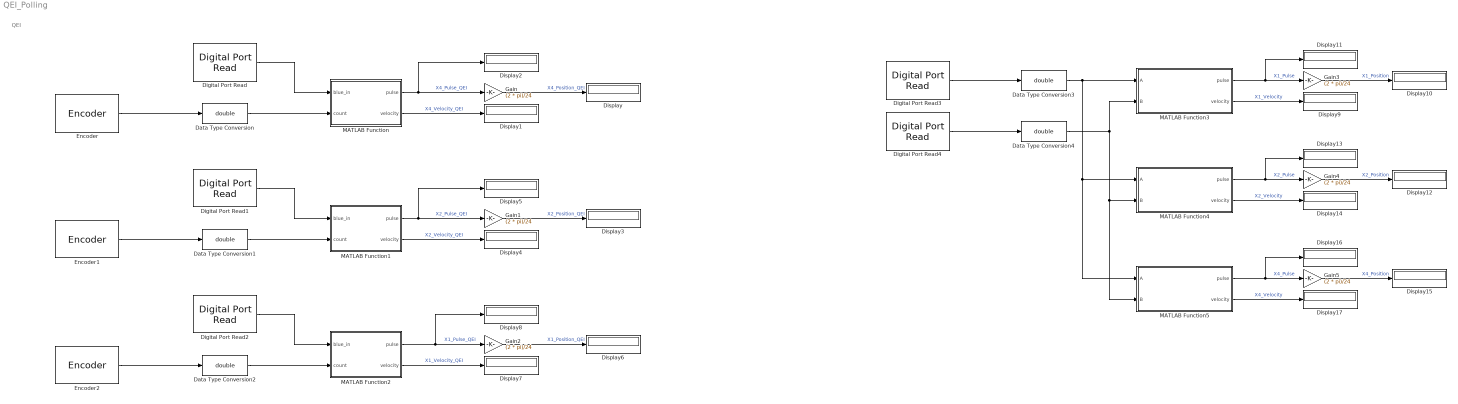
== matlab function QEI_Polling/MATLAB Function1 ==
function [pulse, velocity] = X4(blue_in, count)
    %#codegen
    
    % ประกาศตัวแปร persistent เพื่อเก็บค่าตัวนับก่อนหน้าและตำแหน่งที่คลายห่อก่อนหน้า
    persistent previousCount unwrappedPositionPrev;
    
    % กำหนดค่าเริ่มต้นให้ตัวแปร persistent เมื่อเรียกใช้งานครั้งแรก
    if isempty(previousCount)
        previousCount = count;
        unwrappedPositionPrev = 0;  % กำหนดตำแหน่งคลายห่อเริ่มต้นเป็นศูนย์
    end

    % กำหนดขอบเขตของ encoder
    encoderMax = 65520;   % ค่าสูงสุดสำหรับ encoder แบบ 16-bit (0-65535)
    threshold = encoderMax / 2;  % ค่า threshold สำหรับตรวจจับ overflow หรือ underflow

    % คำนวณค่าความแตกต่างระหว่างค่าปัจจุบันกับค่าก่อนหน้า
    diff_count = count - previousCount;

    % คำนวณความเร็วเชิงมุม (Angular Velocity)
    Ts = 0.01; % กำหนด Sampling Time (เช่น 10ms)
    PPR = 24; % จำนวนพัลส์ต่อรอบ
    velocity = ((diff_count / PPR) / Ts) * 60; % Velocity เป็น RPM

    % ตรวจจับการ overflow และ underflow
    if diff_count > threshold
        % พบการ overflow (เช่น count เปลี่ยนจาก 65535 กลับไปที่ 0)
        pulse = unwrappedPositionPrev + (diff_count - encoderMax);
    elseif diff_count < -threshold
        % พบการ underflow (เช่น count เปลี่ยนจาก 0 เป็น 65535)
        pulse = unwrappedPositionPrev + (diff_count + encoderMax);
    else
        % กรณีปกติที่ไม่มี overflow/underflow
        pulse = unwrappedPositionPrev + diff_count;
    end

    if blue_in == 1
        pulse = 0;
        velocity = 0;
    end
    % อัปเดตตัวแปร persistent เพื่อใช้ในรอบถัดไป
    previousCount = count;
    unwrappedPositionPrev = pulse; 
end

== matlab function QEI_Polling/MATLAB Function ==
function [pulse, velocity] = X4(blue_in, count)
    %#codegen
    
    % ประกาศตัวแปร persistent เพื่อเก็บค่าตัวนับก่อนหน้าและตำแหน่งที่คลายห่อก่อนหน้า
    persistent previousCount unwrappedPositionPrev;
    
    % กำหนดค่าเริ่มต้นให้ตัวแปร persistent เมื่อเรียกใช้งานครั้งแรก
    if isempty(previousCount)
        previousCount = count;
        unwrappedPositionPrev = 0;  % กำหนดตำแหน่งคลายห่อเริ่มต้นเป็นศูนย์
    end

    % กำหนดขอบเขตของ encoder
    encoderMax = 65520;   % ค่าสูงสุดสำหรับ encoder แบบ 16-bit (0-65535)
    threshold = encoderMax / 2;  % ค่า threshold สำหรับตรวจจับ overflow หรือ underflow

    % คำนวณค่าความแตกต่างระหว่างค่าปัจจุบันกับค่าก่อนหน้า
    diff_count = count - previousCount;

    % คำนวณความเร็วเชิงมุม (Angular Velocity)
    Ts = 0.01; % กำหนด Sampling Time (เช่น 10ms)
    PPR = 24; % จำนวนพัลส์ต่อรอบ
    velocity = ((diff_count / PPR) / Ts) * 60; % Velocity เป็น RPM

    % ตรวจจับการ overflow และ underflow
    if diff_count > threshold
        % พบการ overflow (เช่น count เปลี่ยนจาก 65535 กลับไปที่ 0)
        pulse = unwrappedPositionPrev + (diff_count - encoderMax);
    elseif diff_count < -threshold
        % พบการ underflow (เช่น count เปลี่ยนจาก 0 เป็น 65535)
        pulse = unwrappedPositionPrev + (diff_count + encoderMax);
    else
        % กรณีปกติที่ไม่มี overflow/underflow
        pulse = unwrappedPositionPrev + diff_count;
    end

    if blue_in == 1
        pulse = 0;
        velocity = 0;
    end
    % อัปเดตตัวแปร persistent เพื่อใช้ในรอบถัดไป
    previousCount = count;
    unwrappedPositionPrev = pulse; 
end

== matlab function QEI_Polling/MATLAB Function2 ==
function [pulse, velocity] = X1(blue_in, count)
    %#codegen
    
    % ประกาศตัวแปร persistent เพื่อเก็บค่าตัวนับก่อนหน้าและตำแหน่งที่คลายห่อก่อนหน้า
    persistent previousCount unwrappedPositionPrev;
    
    % กำหนดค่าเริ่มต้นให้ตัวแปร persistent เมื่อเรียกใช้งานครั้งแรก
    if isempty(previousCount)
        previousCount = count;
        unwrappedPositionPrev = 0;  % กำหนดตำแหน่งคลายห่อเริ่มต้นเป็นศูนย์
    end

    % กำหนดขอบเขตของ encoder
    encoderMax = 65520;   % ค่าสูงสุดสำหรับ encoder แบบ 16-bit (0-65535)
    threshold = encoderMax / 2;  % ค่า threshold สำหรับตรวจจับ overflow หรือ underflow

    % คำนวณค่าความแตกต่างระหว่างค่าปัจจุบันกับค่าก่อนหน้า
    diff_count = count - previousCount;

    % คำนวณความเร็วเชิงมุม (Angular Velocity)
    Ts = 0.01; % กำหนด Sampling Time (เช่น 10ms)
    PPR = 24; % จำนวนพัลส์ต่อรอบ
    velocity = ((diff_count / PPR) / Ts) * 60; % Velocity เป็น RPM

    % ตรวจจับการ overflow และ underflow
    if diff_count > threshold
        % พบการ overflow (เช่น count เปลี่ยนจาก 65535 กลับไปที่ 0)
        pulse = unwrappedPositionPrev + (diff_count - encoderMax);
    elseif diff_count < -threshold
        % พบการ underflow (เช่น count เปลี่ยนจาก 0 เป็น 65535)
        pulse = unwrappedPositionPrev + (diff_count + encoderMax);
    else
        % กรณีปกติที่ไม่มี overflow/underflow
        pulse = unwrappedPositionPrev + diff_count;
    end

    if blue_in == 1
        pulse = 0;
        velocity = 0;
    end
    % อัปเดตตัวแปร persistent เพื่อใช้ในรอบถัดไป
    previousCount = count;
    unwrappedPositionPrev = pulse; 
end

== matlab function QEI_Polling/MATLAB Function3 ==
function [pulse, velocity] = EncoderX1(A, B)
   
    persistent lastA count lastCount;
    if isempty(lastA) || isempty(count) || isempty(lastCount)
        lastA = 0;
        count = 0;
        lastCount = 0;
    end
    
    currentA = A;  
    currentB = B;  
    
    if lastA ~= currentA
        if currentB == 1 && currentA == 1
            count = count - 1; 
        elseif currentB == 0 && currentA == 1
            count = count + 1;  
        end
    end
    
    velocity = ((count - lastCount) / 0.001) * 60;
    
    lastA = currentA;
    lastCount = count;
    
    pulse = count;
end

== matlab function QEI_Polling/MATLAB Function4 ==
function [pulse, velocity] = EncoderX2(A, B)
   
    persistent lastA count lastCount;
    if isempty(lastA) || isempty(count) || isempty(lastCount)
        lastA = 0;
        count = 0;
        lastCount = 0;
    end
    
    currentA = A;  
    currentB = B;  
    
    if lastA ~= currentA
        if currentB == 1 && currentA == 1 && lastA == 0
            count = count - 1;  % Forward count
        elseif currentB == 0 && currentA == 1 && lastA == 0
            count = count + 1;  % Backward count
        elseif currentB == 1 && currentA == 0 && lastA == 1
            count = count + 1;
        elseif currentB == 0 && currentA == 0 && lastA == 1
            count = count - 1;
        end
    end
    
    velocity = ((count - lastCount) / 0.001) * 60;
    
    lastA = currentA;
    lastCount = count;
    
    pulse = count;
end

== matlab function QEI_Polling/MATLAB Function5 ==
function [pulse, velocity] = EncoderX4(A, B)

    persistent lastA lastB count lastCount;

    if isempty(lastA) || isempty(lastB) || isempty(count) || isempty(lastCount)
        lastA = 0;
        lastB = 0;
        count = 0;
        lastCount = 0;
    end
    
    
    if lastA == 0 && A == 1
        if B  == 0
            count = count + 1;
        else
            count = count - 1;
        end
    elseif lastA == 1 && A == 0
        if B == 0
            count = count - 1;
        else
            count = count + 1;
        end
    elseif lastB == 0 && B == 1
        if A == 0
            count = count + 1;
        else
            count = count - 1;
        end
    elseif lastB == 1 && B == 0
        if A == 0
            count = count - 1;
        else
            count = count + 1;
        end
    end
        
    
    velocity = ((count - lastCount) / 0.001) * 60;
    
    lastA = A;
    lastB = B;
    lastCount = count;
    
    pulse = count;
end

/*
 * Academic License - for use in teaching, academic research, and meeting
 * course requirements at degree granting institutions only.  Not for
 * government, commercial, or other organizational use.
 *
 * File: QEI_Polling.c
 *
 * Code generated for Simulink model 'QEI_Polling'.
 *
 * Model version                  : 1.2
 * Simulink Coder version         : 24.2 (R2024b) 21-Jun-2024
 * C/C++ source code generated on : Fri Nov  1 00:02:00 2024
 *
 * Target selection: ert.tlc
 * Embedded hardware selection: ARM Compatible->ARM Cortex-M
 * Code generation objectives: Unspecified
 * Validation result: Not run
 */

#include "QEI_Polling.h"
#include "rtwtypes.h"
#include "QEI_Polling_types.h"
#include "QEI_Polling_private.h"
#include "stm_timer_ll.h"

/* Named constants for MATLAB Function: '<Root>/MATLAB Function' */
#define QEI_Polling_CALL_EVENT         (-1)

/* Block signals (default storage) */
B_QEI_Polling_T QEI_Polling_B;

/* Block states (default storage) */
DW_QEI_Polling_T QEI_Polling_DW;

/* Real-time model */
static RT_MODEL_QEI_Polling_T QEI_Polling_M_;
RT_MODEL_QEI_Polling_T *const QEI_Polling_M = &QEI_Polling_M_;

/* Forward declaration for local functions */
static void QEI_Polling_SystemCore_setup(stm32cube_blocks_EncoderBlock_T *obj);
static void QEI_Polling_SystemCore_setup_k(stm32cube_blocks_EncoderBlock_T *obj);
static void QEI_Polling_SystemCore_setup_k0(stm32cube_blocks_EncoderBlock_T *obj);

/* System initialize for atomic system: */
void QEI_Pollin_DigitalPortRead_Init(DW_DigitalPortRead_QEI_Pollin_T *localDW)
{
  /* Start for MATLABSystem: '<S14>/Digital Port Read' */
  localDW->objisempty = true;
  localDW->obj.isInitialized = 1;
}

/* Output and update for atomic system: */
void QEI_Polling_DigitalPortRead(B_DigitalPortRead_QEI_Polling_T *localB)
{
  uint32_T pinReadLoc;

  /* MATLABSystem: '<S14>/Digital Port Read' */
  pinReadLoc = LL_GPIO_ReadInputPort(GPIOC);

  /* MATLABSystem: '<S14>/Digital Port Read' */
  localB->DigitalPortRead = ((pinReadLoc & 8192U) != 0U);
}

/*
 * System initialize for atomic system:
 *    '<Root>/MATLAB Function'
 *    '<Root>/MATLAB Function1'
 *    '<Root>/MATLAB Function2'
 */
void QEI_Polling_MATLABFunction_Init(DW_MATLABFunction_QEI_Polling_T *localDW)
{
  localDW->sfEvent = QEI_Polling_CALL_EVENT;
}

/*
 * Output and update for atomic system:
 *    '<Root>/MATLAB Function'
 *    '<Root>/MATLAB Function1'
 *    '<Root>/MATLAB Function2'
 */
void QEI_Polling_MATLABFunction(boolean_T rtu_blue_in, real_T rtu_count, real_T *
  rty_pulse, real_T *rty_velocity, DW_MATLABFunction_QEI_Polling_T *localDW)
{
  real_T diff_count;
  localDW->sfEvent = QEI_Polling_CALL_EVENT;
  if (!localDW->lastCount_not_empty) {
    localDW->lastCount = rtu_count;
    localDW->lastCount_not_empty = true;
    localDW->unwrappedPositionPrev_not_empty = true;
  }

  diff_count = rtu_count - localDW->lastCount;
  *rty_velocity = diff_count / 24.0 / 0.1 * 60.0;
  if (diff_count > 32760.0) {
    localDW->unwrappedPositionPrev += diff_count - 65520.0;
  } else if (diff_count < -32760.0) {
    localDW->unwrappedPositionPrev += diff_count + 65520.0;
  } else {
    localDW->unwrappedPositionPrev += diff_count;
  }

  if (rtu_blue_in) {
    localDW->unwrappedPositionPrev = 0.0;
    *rty_velocity = 0.0;
  }

  localDW->lastCount = rtu_count;
  *rty_pulse = localDW->unwrappedPositionPrev;
}

static void QEI_Polling_SystemCore_setup(stm32cube_blocks_EncoderBlock_T *obj)
{
  uint8_T ChannelInfo;
  TIM_Type_T b;
  boolean_T isSlaveModeTriggerEnabled;

  /* Start for MATLABSystem: '<Root>/Encoder' */
  obj->isInitialized = 1;
  b.PeripheralPtr = TIM3;
  b.isCenterAlignedMode = false;

  /* Start for MATLABSystem: '<Root>/Encoder' */
  b.repetitionCounter = 0U;
  obj->TimerHandle = Timer_Handle_Init(&b);
  enableTimerInterrupts(obj->TimerHandle, 0);
  ChannelInfo = ENABLE_CH;

  /* Start for MATLABSystem: '<Root>/Encoder' */
  enableTimerChannel1(obj->TimerHandle, ChannelInfo);
  enableTimerChannel2(obj->TimerHandle, ChannelInfo);
  isSlaveModeTriggerEnabled = isSlaveTriggerModeEnabled(obj->TimerHandle);
  if (!isSlaveModeTriggerEnabled) {
    /* Start for MATLABSystem: '<Root>/Encoder' */
    enableCounter(obj->TimerHandle, false);
  }

  obj->isSetupComplete = true;
}

static void QEI_Polling_SystemCore_setup_k(stm32cube_blocks_EncoderBlock_T *obj)
{
  uint8_T ChannelInfo;
  TIM_Type_T b;
  boolean_T isSlaveModeTriggerEnabled;

  /* Start for MATLABSystem: '<Root>/Encoder1' */
  obj->isInitialized = 1;
  b.PeripheralPtr = TIM4;
  b.isCenterAlignedMode = false;

  /* Start for MATLABSystem: '<Root>/Encoder1' */
  b.repetitionCounter = 0U;
  obj->TimerHandle = Timer_Handle_Init(&b);
  enableTimerInterrupts(obj->TimerHandle, 0);
  ChannelInfo = ENABLE_CH;

  /* Start for MATLABSystem: '<Root>/Encoder1' */
  enableTimerChannel1(obj->TimerHandle, ChannelInfo);
  enableTimerChannel2(obj->TimerHandle, ChannelInfo);
  isSlaveModeTriggerEnabled = isSlaveTriggerModeEnabled(obj->TimerHandle);
  if (!isSlaveModeTriggerEnabled) {
    /* Start for MATLABSystem: '<Root>/Encoder1' */
    enableCounter(obj->TimerHandle, false);
  }

  obj->isSetupComplete = true;
}

static void QEI_Polling_SystemCore_setup_k0(stm32cube_blocks_EncoderBlock_T *obj)
{
  uint8_T ChannelInfo;
  TIM_Type_T b;
  boolean_T isSlaveModeTriggerEnabled;

  /* Start for MATLABSystem: '<Root>/Encoder2' */
  obj->isInitialized = 1;
  b.PeripheralPtr = TIM8;
  b.isCenterAlignedMode = false;

  /* Start for MATLABSystem: '<Root>/Encoder2' */
  b.repetitionCounter = 0U;
  obj->TimerHandle = Timer_Handle_Init(&b);
  enableTimerInterrupts(obj->TimerHandle, 0);
  ChannelInfo = ENABLE_CH;

  /* Start for MATLABSystem: '<Root>/Encoder2' */
  enableTimerChannel1(obj->TimerHandle, ChannelInfo);
  enableTimerChannel2(obj->TimerHandle, ChannelInfo);
  isSlaveModeTriggerEnabled = isSlaveTriggerModeEnabled(obj->TimerHandle);
  if (!isSlaveModeTriggerEnabled) {
    /* Start for MATLABSystem: '<Root>/Encoder2' */
    enableCounter(obj->TimerHandle, false);
  }

  obj->isSetupComplete = true;
}

/* Model step function */
void QEI_Polling_step(void)
{
  real_T B;
  real_T currentA;
  uint32_T timerCounts;
  QEI_Polling_DigitalPortRead(&QEI_Polling_B.DigitalPortRead);

  /* MATLABSystem: '<Root>/Encoder' */
  timerCounts = getTimerCounterValueForG4(QEI_Polling_DW.obj_m.TimerHandle,
    false, NULL);

  /* MATLAB Function: '<Root>/MATLAB Function' incorporates:
   *  DataTypeConversion: '<Root>/Data Type Conversion'
   *  MATLABSystem: '<Root>/Encoder'
   */
  QEI_Polling_MATLABFunction(QEI_Polling_B.DigitalPortRead.DigitalPortRead,
    (real_T)timerCounts, &QEI_Polling_B.pulse_h, &QEI_Polling_B.velocity_k,
    &QEI_Polling_DW.sf_MATLABFunction);

  /* Gain: '<Root>/Gain' */
  QEI_Polling_B.X4_Position_QEI = 0.26179938779914941 * QEI_Polling_B.pulse_h;
  QEI_Polling_DigitalPortRead(&QEI_Polling_B.DigitalPortRead_e);

  /* MATLABSystem: '<Root>/Encoder1' */
  timerCounts = getTimerCounterValueForG4(QEI_Polling_DW.obj_c.TimerHandle,
    false, NULL);

  /* MATLAB Function: '<Root>/MATLAB Function1' incorporates:
   *  DataTypeConversion: '<Root>/Data Type Conversion1'
   *  MATLABSystem: '<Root>/Encoder1'
   */
  QEI_Polling_MATLABFunction(QEI_Polling_B.DigitalPortRead_e.DigitalPortRead,
    (real_T)timerCounts, &QEI_Polling_B.pulse_g, &QEI_Polling_B.velocity_n2,
    &QEI_Polling_DW.sf_MATLABFunction1);

  /* Gain: '<Root>/Gain1' */
  QEI_Polling_B.X2_Position_QEI = 0.26179938779914941 * QEI_Polling_B.pulse_g;
  QEI_Polling_DigitalPortRead(&QEI_Polling_B.DigitalPortRead_m);

  /* MATLABSystem: '<Root>/Encoder2' */
  timerCounts = getTimerCounterValueForG4(QEI_Polling_DW.obj.TimerHandle, false,
    NULL);

  /* MATLAB Function: '<Root>/MATLAB Function2' incorporates:
   *  DataTypeConversion: '<Root>/Data Type Conversion2'
   *  MATLABSystem: '<Root>/Encoder2'
   */
  QEI_Polling_MATLABFunction(QEI_Polling_B.DigitalPortRead_m.DigitalPortRead,
    (real_T)timerCounts, &QEI_Polling_B.pulse_i, &QEI_Polling_B.velocity_b,
    &QEI_Polling_DW.sf_MATLABFunction2);

  /* Gain: '<Root>/Gain2' */
  QEI_Polling_B.X1_Position_QEI = 0.26179938779914941 * QEI_Polling_B.pulse_i;
  QEI_Polling_DigitalPortRead(&QEI_Polling_B.DigitalPortRead_ev);

  /* MATLABSystem: '<S20>/Digital Port Read' */
  timerCounts = LL_GPIO_ReadInputPort(GPIOB);

  /* DataTypeConversion: '<Root>/Data Type Conversion3' incorporates:
   *  MATLABSystem: '<S20>/Digital Port Read'
   * */
  QEI_Polling_B.DataTypeConversion3 = ((timerCounts & 32U) != 0U);

  /* MATLABSystem: '<S22>/Digital Port Read' */
  timerCounts = LL_GPIO_ReadInputPort(GPIOB);

  /* DataTypeConversion: '<Root>/Data Type Conversion4' incorporates:
   *  MATLABSystem: '<S22>/Digital Port Read'
   * */
  QEI_Polling_B.DataTypeConversion4 = ((timerCounts & 16U) != 0U);

  /* MATLAB Function: '<Root>/MATLAB Function3' */
  if ((!QEI_Polling_DW.lastA_not_empty_a) || (!QEI_Polling_DW.count_not_empty_m)
      || (!QEI_Polling_DW.lastCount_not_empty_g)) {
    QEI_Polling_DW.lastA_j = 0.0;
    QEI_Polling_DW.lastA_not_empty_a = true;
    QEI_Polling_DW.count_h = 0.0;
    QEI_Polling_DW.count_not_empty_m = true;
    QEI_Polling_DW.lastCount_h = 0.0;
    QEI_Polling_DW.lastCount_not_empty_g = true;
  }

  currentA = QEI_Polling_B.DataTypeConversion3;
  if (QEI_Polling_DW.lastA_j != QEI_Polling_B.DataTypeConversion3) {
    if ((QEI_Polling_B.DataTypeConversion4 == 1.0) &&
        (QEI_Polling_B.DataTypeConversion3 == 1.0)) {
      QEI_Polling_DW.count_h--;
    } else if ((QEI_Polling_B.DataTypeConversion4 == 0.0) &&
               (QEI_Polling_B.DataTypeConversion3 == 1.0)) {
      QEI_Polling_DW.count_h++;
    }
  }

  QEI_Polling_B.velocity_f = (QEI_Polling_DW.count_h -
    QEI_Polling_DW.lastCount_h) / 0.01 * 60.0;
  if (QEI_Polling_B.DigitalPortRead_ev.DigitalPortRead) {
    QEI_Polling_DW.count_h = 0.0;
    QEI_Polling_B.velocity_f = 0.0;
    currentA = 0.0;
  }

  QEI_Polling_DW.lastA_j = currentA;
  QEI_Polling_DW.lastCount_h = QEI_Polling_DW.count_h;
  QEI_Polling_B.pulse_b = QEI_Polling_DW.count_h;

  /* End of MATLAB Function: '<Root>/MATLAB Function3' */
  /* Gain: '<Root>/Gain3' */
  QEI_Polling_B.X1_Position = 0.26179938779914941 * QEI_Polling_B.pulse_b;

  /* MATLAB Function: '<Root>/MATLAB Function4' */
  if ((!QEI_Polling_DW.lastA_not_empty_c) || (!QEI_Polling_DW.count_not_empty_i)
      || (!QEI_Polling_DW.lastCount_not_empty_m)) {
    QEI_Polling_DW.lastA_b = 0.0;
    QEI_Polling_DW.lastA_not_empty_c = true;
    QEI_Polling_DW.count_d = 0.0;
    QEI_Polling_DW.count_not_empty_i = true;
    QEI_Polling_DW.lastCount_j = 0.0;
    QEI_Polling_DW.lastCount_not_empty_m = true;
  }

  currentA = QEI_Polling_B.DataTypeConversion3;
  if (QEI_Polling_DW.lastA_b != QEI_Polling_B.DataTypeConversion3) {
    if ((QEI_Polling_B.DataTypeConversion4 == 1.0) &&
        (QEI_Polling_B.DataTypeConversion3 == 1.0) && (QEI_Polling_DW.lastA_b ==
         0.0)) {
      QEI_Polling_DW.count_d--;
    } else if ((QEI_Polling_B.DataTypeConversion4 == 0.0) &&
               (QEI_Polling_B.DataTypeConversion3 == 1.0) &&
               (QEI_Polling_DW.lastA_b == 0.0)) {
      QEI_Polling_DW.count_d++;
    } else if ((QEI_Polling_B.DataTypeConversion4 == 1.0) &&
               (QEI_Polling_B.DataTypeConversion3 == 0.0) &&
               (QEI_Polling_DW.lastA_b == 1.0)) {
      QEI_Polling_DW.count_d++;
    } else if ((QEI_Polling_B.DataTypeConversion4 == 0.0) &&
               (QEI_Polling_B.DataTypeConversion3 == 0.0) &&
               (QEI_Polling_DW.lastA_b == 1.0)) {
      QEI_Polling_DW.count_d--;
    }
  }

  QEI_Polling_B.velocity_n = (QEI_Polling_DW.count_d -
    QEI_Polling_DW.lastCount_j) / 0.01 * 60.0;
  if (QEI_Polling_B.DigitalPortRead_ev.DigitalPortRead) {
    QEI_Polling_DW.count_d = 0.0;
    QEI_Polling_B.velocity_n = 0.0;
    currentA = 0.0;
  }

  QEI_Polling_DW.lastA_b = currentA;
  QEI_Polling_DW.lastCount_j = QEI_Polling_DW.count_d;
  QEI_Polling_B.pulse_n = QEI_Polling_DW.count_d;

  /* End of MATLAB Function: '<Root>/MATLAB Function4' */
  /* Gain: '<Root>/Gain4' */
  QEI_Polling_B.X2_Position = 0.26179938779914941 * QEI_Polling_B.pulse_n;

  /* MATLAB Function: '<Root>/MATLAB Function5' */
  currentA = QEI_Polling_B.DataTypeConversion3;
  B = QEI_Polling_B.DataTypeConversion4;
  if ((!QEI_Polling_DW.lastA_not_empty) || (!QEI_Polling_DW.lastB_not_empty) ||
      (!QEI_Polling_DW.count_not_empty) || (!QEI_Polling_DW.lastCount_not_empty))
  {
    QEI_Polling_DW.lastA = 0.0;
    QEI_Polling_DW.lastA_not_empty = true;
    QEI_Polling_DW.lastB = 0.0;
    QEI_Polling_DW.lastB_not_empty = true;
    QEI_Polling_DW.count = 0.0;
    QEI_Polling_DW.count_not_empty = true;
    QEI_Polling_DW.lastCount = 0.0;
    QEI_Polling_DW.lastCount_not_empty = true;
  }

  if ((QEI_Polling_DW.lastA == 0.0) && (QEI_Polling_DW.lastB == 0.0)) {
    if ((QEI_Polling_B.DataTypeConversion3 == 1.0) &&
        (QEI_Polling_B.DataTypeConversion4 == 0.0)) {
      QEI_Polling_DW.count++;
    } else if ((QEI_Polling_B.DataTypeConversion3 == 0.0) &&
               (QEI_Polling_B.DataTypeConversion4 == 1.0)) {
      QEI_Polling_DW.count--;
    }
  } else if ((QEI_Polling_DW.lastA == 1.0) && (QEI_Polling_DW.lastB == 0.0)) {
    if ((QEI_Polling_B.DataTypeConversion3 == 1.0) &&
        (QEI_Polling_B.DataTypeConversion4 == 1.0)) {
      QEI_Polling_DW.count++;
    } else if ((QEI_Polling_B.DataTypeConversion3 == 0.0) &&
               (QEI_Polling_B.DataTypeConversion4 == 0.0)) {
      QEI_Polling_DW.count--;
    }
  } else if ((QEI_Polling_DW.lastA == 1.0) && (QEI_Polling_DW.lastB == 1.0)) {
    if ((QEI_Polling_B.DataTypeConversion3 == 0.0) &&
        (QEI_Polling_B.DataTypeConversion4 == 1.0)) {
      QEI_Polling_DW.count++;
    } else if ((QEI_Polling_B.DataTypeConversion3 == 1.0) &&
               (QEI_Polling_B.DataTypeConversion4 == 0.0)) {
      QEI_Polling_DW.count--;
    }
  } else if ((QEI_Polling_DW.lastA == 0.0) && (QEI_Polling_DW.lastB == 1.0)) {
    if ((QEI_Polling_B.DataTypeConversion3 == 0.0) &&
        (QEI_Polling_B.DataTypeConversion4 == 0.0)) {
      QEI_Polling_DW.count++;
    } else if ((QEI_Polling_B.DataTypeConversion3 == 1.0) &&
               (QEI_Polling_B.DataTypeConversion4 == 1.0)) {
      QEI_Polling_DW.count--;
    }
  }

  QEI_Polling_B.velocity = (QEI_Polling_DW.count - QEI_Polling_DW.lastCount) /
    0.01 * 60.0;
  if (QEI_Polling_B.DigitalPortRead_ev.DigitalPortRead) {
    QEI_Polling_DW.count = 0.0;
    QEI_Polling_B.velocity = 0.0;
    currentA = 0.0;
    B = 0.0;
  }

  QEI_Polling_DW.lastA = currentA;
  QEI_Polling_DW.lastB = B;
  QEI_Polling_DW.lastCount = QEI_Polling_DW.count;
  QEI_Polling_B.pulse = QEI_Polling_DW.count;

  /* End of MATLAB Function: '<Root>/MATLAB Function5' */
  /* Gain: '<Root>/Gain5' */
  QEI_Polling_B.X4_Position = 0.26179938779914941 * QEI_Polling_B.pulse;

  /* Update absolute time for base rate */
  /* The "clockTick0" counts the number of times the code of this task has
   * been executed. The absolute time is the multiplication of "clockTick0"
   * and "Timing.stepSize0". Size of "clockTick0" ensures timer will not
   * overflow during the application lifespan selected.
   */
  QEI_Polling_M->Timing.taskTime0 =
    ((time_T)(++QEI_Polling_M->Timing.clockTick0)) *
    QEI_Polling_M->Timing.stepSize0;
}
